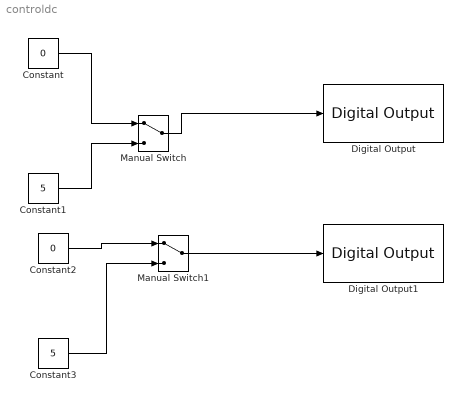
/*
 * File: controldc.c
 *
 * Code generated for Simulink model 'controldc'.
 *
 * Model version                  : 1.0
 * Simulink Coder version         : 9.3 (R2020a) 18-Nov-2019
 * C/C++ source code generated on : Tue Nov  7 12:20:47 2023
 *
 * Target selection: ert.tlc
 * Embedded hardware selection: Atmel->AVR
 * Code generation objectives: Unspecified
 * Validation result: Not run
 */

#include "controldc.h"
#include "controldc_private.h"
#include "controldc_dt.h"

/* Block states (default storage) */
DW_controldc_T controldc_DW;

/* Real-time model */
RT_MODEL_controldc_T controldc_M_;
RT_MODEL_controldc_T *const controldc_M = &controldc_M_;

/* Forward declaration for local functions */
static void matlabCodegenHandle_matlabCodeg(codertarget_arduinobase_block_T *obj);
real_T rt_roundd_snf(real_T u)
{
  real_T y;
  if (fabs(u) < 4.503599627370496E+15) {
    if (u >= 0.5) {
      y = floor(u + 0.5);
    } else if (u > -0.5) {
      y = u * 0.0;
    } else {
      y = ceil(u - 0.5);
    }
  } else {
    y = u;
  }

  return y;
}

static void matlabCodegenHandle_matlabCodeg(codertarget_arduinobase_block_T *obj)
{
  if (!obj->matlabCodegenIsDeleted) {
    obj->matlabCodegenIsDeleted = true;
  }
}

/* Model step function */
void controldc_step(void)
{
  real_T tmp;
  uint8_T tmp_0;

  /* ManualSwitch: '<Root>/Manual Switch' incorporates:
   *  Constant: '<Root>/Constant'
   *  Constant: '<Root>/Constant1'
   */
  if (controldc_P.ManualSwitch_CurrentSetting == 1) {
    tmp = controldc_P.Constant_Value;
  } else {
    tmp = controldc_P.Constant1_Value;
  }

  /* End of ManualSwitch: '<Root>/Manual Switch' */

  /* MATLABSystem: '<Root>/Digital Output' */
  tmp = rt_roundd_snf(tmp);
  if (tmp < 256.0) {
    if (tmp >= 0.0) {
      tmp_0 = (uint8_T)tmp;
    } else {
      tmp_0 = 0U;
    }
  } else {
    tmp_0 = MAX_uint8_T;
  }

  writeDigitalPin(4, tmp_0);

  /* End of MATLABSystem: '<Root>/Digital Output' */

  /* ManualSwitch: '<Root>/Manual Switch1' incorporates:
   *  Constant: '<Root>/Constant2'
   *  Constant: '<Root>/Constant3'
   */
  if (controldc_P.ManualSwitch1_CurrentSetting == 1) {
    tmp = controldc_P.Constant2_Value;
  } else {
    tmp = controldc_P.Constant3_Value;
  }

  /* End of ManualSwitch: '<Root>/Manual Switch1' */

  /* MATLABSystem: '<Root>/Digital Output1' */
  tmp = rt_roundd_snf(tmp);
  if (tmp < 256.0) {
    if (tmp >= 0.0) {
      tmp_0 = (uint8_T)tmp;
    } else {
      tmp_0 = 0U;
    }
  } else {
    tmp_0 = MAX_uint8_T;
  }

  writeDigitalPin(8, tmp_0);

  /* End of MATLABSystem: '<Root>/Digital Output1' */

  /* External mode */
  rtExtModeUploadCheckTrigger(1);

  {                                    /* Sample time: [0.01s, 0.0s] */
    rtExtModeUpload(0, (real_T)controldc_M->Timing.taskTime0);
  }

  /* signal main to stop simulation */
  {                                    /* Sample time: [0.01s, 0.0s] */
    if ((rtmGetTFinal(controldc_M)!=-1) &&
        !((rtmGetTFinal(controldc_M)-controldc_M->Timing.taskTime0) >
          controldc_M->Timing.taskTime0 * (DBL_EPSILON))) {
      rtmSetErrorStatus(controldc_M, "Simulation finished");
    }

    if (rtmGetStopRequested(controldc_M)) {
      rtmSetErrorStatus(controldc_M, "Simulation finished");
    }
  }

  /* Update absolute time for base rate */
  /* The "clockTick0" counts the number of times the code of this task has
   * been executed. The absolute time is the multiplication of "clockTick0"
   * and "Timing.stepSize0". Size of "clockTick0" ensures timer will not
   * overflow during the application lifespan selected.
   */
  controldc_M->Timing.taskTime0 =
    ((time_T)(++controldc_M->Timing.clockTick0)) * controldc_M->Timing.stepSize0;
}
